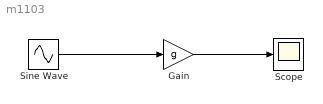
/*
 * m1103.c
 * 
 * Real-Time Workshop code generation for Simulink model "m1103.mdl".
 *
 * Model Version              : 1.2
 * Real-Time Workshop version : 6.1  (R14SP1)  05-Sep-2004
 * C source code generated on : Tue May 10 10:14:56 2005
 */

#include "m1103.h"
#include "m1103_private.h"

#include <stdio.h>
#include "m1103_dt.h"

/* Block signals (auto storage) */
BlockIO_m1103 m1103_B;

/* Block states (auto storage) */
D_Work_m1103 m1103_DWork;

/* Real-time model */
rtModel_m1103 m1103_M_;
rtModel_m1103 *m1103_M = &m1103_M_;

/* Model output function */
void m1103_output(int_T tid)
{

  /* local block i/o variables */

  real_T rtb_SineWave;

  /* Sin: '<Root>/Sine Wave' */
  rtb_SineWave = m1103_P.SineWave_Amp *
    sin(m1103_P.SineWave_Freq * m1103_M->Timing.t[0] + m1103_P.SineWave_Phase) +
    m1103_P.SineWave_Bias;

  /* Gain: '<Root>/Gain' */
  m1103_B.Gain = rtb_SineWave * m1103_P.Gain_Gain;
}

/* Model update function */
void m1103_update(int_T tid)
{

  /* Update absolute time for base rate */

  if(!(++m1103_M->Timing.clockTick0)) ++m1103_M->Timing.clockTickH0;
  m1103_M->Timing.t[0] = m1103_M->Timing.clockTick0 * m1103_M->Timing.stepSize0
    + m1103_M->Timing.clockTickH0 * m1103_M->Timing.stepSize0 * 4294967296.0;

  {
    /* Update absolute timer for sample time: [0.01s, 0.0s] */

    if(!(++m1103_M->Timing.clockTick1)) ++m1103_M->Timing.clockTickH1;
    m1103_M->Timing.t[1] = m1103_M->Timing.clockTick1 *
      m1103_M->Timing.stepSize1 + m1103_M->Timing.clockTickH1 *
      m1103_M->Timing.stepSize1 * 4294967296.0;
  }
}
